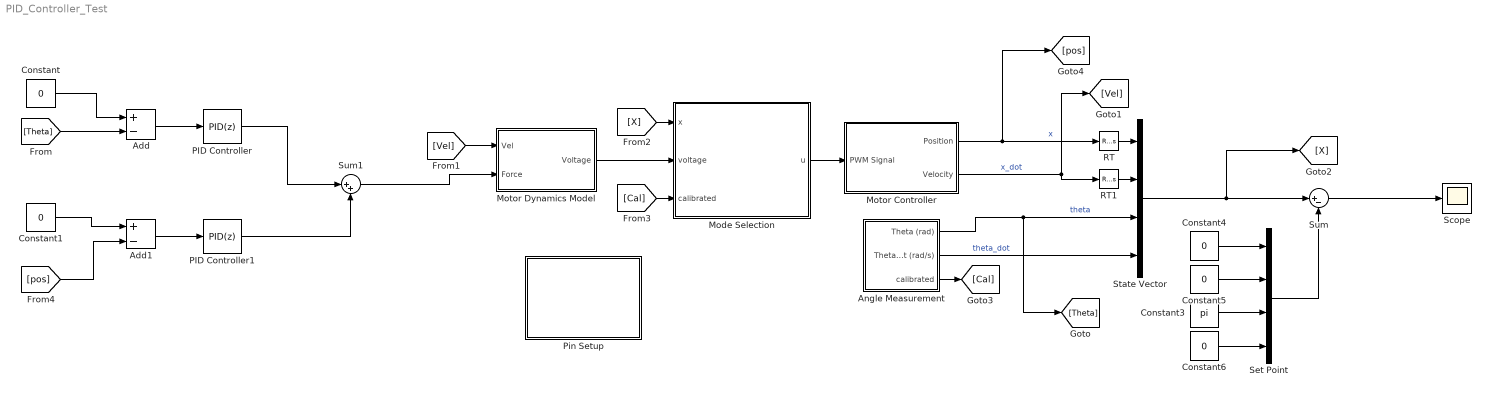
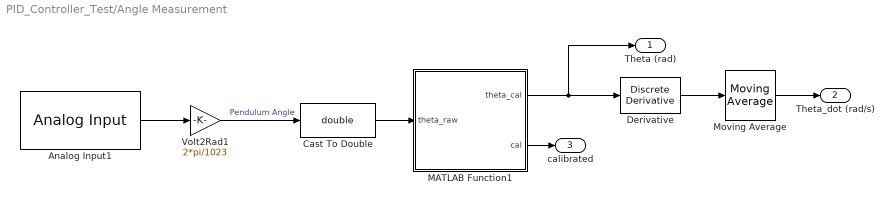
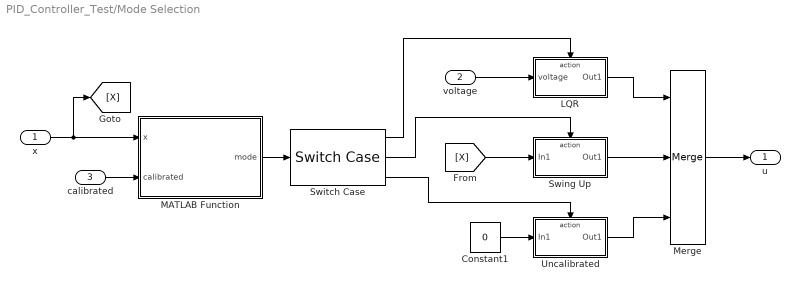
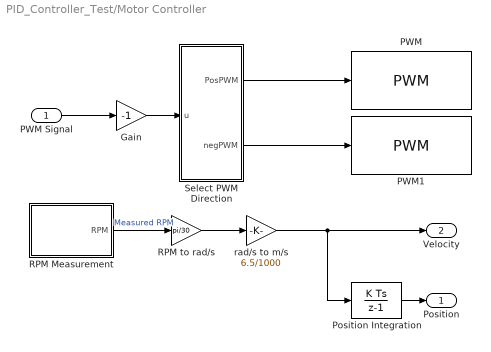
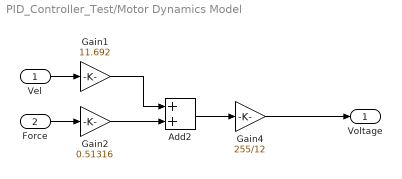
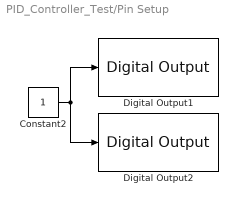
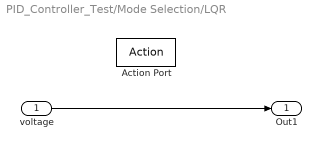
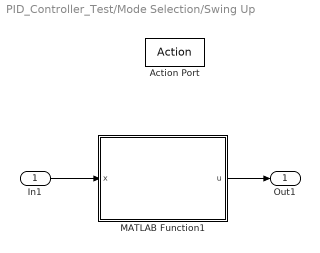
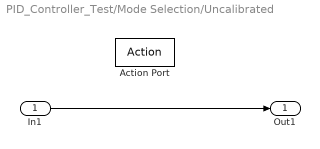
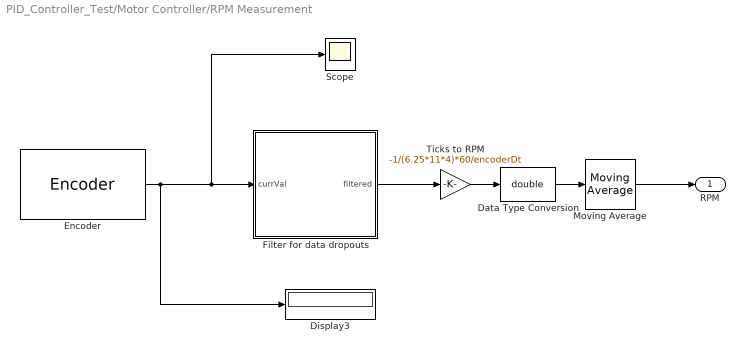
== matlab function PID_Controller_Test/Motor Controller/Select PWM Direction ==
function [PosPWM, negPWM] = PWMDir(u)
    if u > 0
        PosPWM = u;
        negPWM = 0;
    else
        negPWM = -u;
        PosPWM = 0;
    end
end

== matlab function PID_Controller_Test/Motor Controller/RPM Measurement/Filter for data dropouts ==
function filtered = filterEncoder(currVal)
%#codegen

persistent prevVal

% Initialize on first call
if isempty(prevVal)
    prevVal = currVal;
end

% Dropout detection
threshold = 200;  % Adjust based on your system

if abs(currVal - prevVal) > threshold
    % Bad reading: keep previous good value
    filtered = prevVal;
elseif abs(currVal) > 500
    % this is also a bad reading, nothing should be greater than this
    filtered = prevVal;
else
    % Good reading: update and pass through
    filtered = currVal;
    prevVal = currVal;
end

== matlab function PID_Controller_Test/Mode Selection/MATLAB Function ==
function mode = ControllerMode(x, calibrated)
% the controller mode selection acts on the state of the pendulum. In the
% standard stable configuration, the controller will center and perform a
% swing up. Once this is achieved, the controller moves into the LQR
% regulator for upright control.
%
% Inputs:
% x - full state vector [4x1]
% voltage - voltage control input [V]
% calibrated - calibration flag boolean

% demux the input state:

pos = x(1);
vel = x(2);
theta = x(3);
omega = x(4);

% if it's calibrated, continue
if calibrated
    % If it is close enough to the vertical position, run the LQR
    if abs(theta-pi) < 0.15 && abs(omega) < 1.5
        mode = 1;        
    else % if it is close enough to the downward position, run the swing up controller
        mode = 2;
    end
else
    mode = 3;
end

end

== matlab function PID_Controller_Test/Angle Measurement/MATLAB Function1 ==
function [theta_cal, cal] = calibrateAngle(theta_raw)
% Calibrates angle by averaging first N samples at startup,
% then subtracting the average offset and adding pi.
%
% Inputs:
%  - theta_raw : current raw angle measurement
%  - reset     : boolean flag to reset calibration (true at startup)
%
% Output:
%  - theta_cal : calibrated angle (aligned so initial avg = pi)

    persistent sample_count theta_sum theta0 calibrated N

    if isempty(calibrated)
        % Initialization on reset
        N = 250;                % number of samples to average
        sample_count = 0;
        theta_sum = 0;
        theta0 = 0;
        calibrated = false;
        cal = false;
    end

    if ~calibrated
        % Accumulate samples for averaging
        sample_count = sample_count + 1;
        theta_sum = theta_sum + theta_raw;
        
        if sample_count >= N
            theta0 = theta_sum / N;  % average offset
            calibrated = true;
            cal = true;
        end
    end

    if calibrated
        % After calibration, subtract offset and add pi
        theta_cal = theta_raw - theta0 + 2*pi;
        cal = true;
    else
        % During calibration phase, output raw angle
        theta_cal = theta_raw + 1/2*pi; 
        cal = false;
    end
end

== matlab function PID_Controller_Test/Mode Selection/Swing Up/MATLAB Function1 ==
function u = SwingUpController(x)

% demux the input state:
pos = x(1);
vel = x(2);
theta = x(3);
omega = x(4);

persistent thetaMax

if isempty(thetaMax)
    thetaMax = theta;
end

T = 1.1; % period of pendulum
t = 0.05; % acceleration time of pendulum

alphaBest = thetaMax * sin(2*pi/T*t);

u = 0;

end

/*
 * PID_Controller_Test.c
 *
 * Academic License - for use in teaching, academic research, and meeting
 * course requirements at degree granting institutions only.  Not for
 * government, commercial, or other organizational use.
 *
 * Code generation for model "PID_Controller_Test".
 *
 * Model version              : 1.1
 * Simulink Coder version : 25.1 (R2025a) 21-Nov-2024
 * C source code generated on : Mon Oct  6 19:57:00 2025
 *
 * Target selection: ert.tlc
 * Note: GRT includes extra infrastructure and instrumentation for prototyping
 * Embedded hardware selection: Atmel->AVR
 * Code generation objectives: Unspecified
 * Validation result: Not run
 */

#include "PID_Controller_Test.h"
#include "PID_Controller_Test_types.h"
#include "rtwtypes.h"
#include <string.h>
#include <math.h>
#include "PID_Controller_Test_private.h"
#include "multiword_types.h"
#include "rt_nonfinite.h"

/* Block signals (default storage) */
B_PID_Controller_Test_T PID_Controller_Test_B;

/* Block states (default storage) */
DW_PID_Controller_Test_T PID_Controller_Test_DW;

/* Real-time model */
static RT_MODEL_PID_Controller_Test_T PID_Controller_Test_M_;
RT_MODEL_PID_Controller_Test_T *const PID_Controller_Test_M =
  &PID_Controller_Test_M_;

/* Forward declaration for local functions */
static void PID_Controller_SystemCore_setup(dsp_simulink_MovingAverage_PI_T *obj);
static void PID_Controll_SystemCore_setup_l(dsp_simulink_MovingAverage_l_T *obj);
static void rate_monotonic_scheduler(void);
void sMultiWordMul(const uint32_T u1[], int16_T n1, const uint32_T u2[], int16_T
                   n2, uint32_T y[], int16_T n)
{
  uint32_T a0;
  uint32_T a1;
  uint32_T b1;
  uint32_T cb;
  uint32_T cb1;
  uint32_T cb2;
  uint32_T u1i;
  uint32_T w01;
  uint32_T w10;
  uint32_T yk;
  int16_T i;
  int16_T j;
  int16_T k;
  int16_T ni;
  boolean_T isNegative1;
  boolean_T isNegative2;
  isNegative1 = ((u1[n1 - 1] & 2147483648UL) != 0UL);
  isNegative2 = ((u2[n2 - 1] & 2147483648UL) != 0UL);
  cb1 = 1UL;

  /* Initialize output to zero */
  for (k = 0; k < n; k++) {
    y[k] = 0UL;
  }

  for (i = 0; i < n1; i++) {
    cb = 0UL;
    u1i = u1[i];
    if (isNegative1) {
      u1i = ~u1i + cb1;
      cb1 = (uint32_T)(u1i < cb1);
    }

    a1 = u1i >> 16U;
    a0 = u1i & 65535UL;
    cb2 = 1UL;
    ni = n - i;
    ni = n2 <= ni ? n2 : ni;
    k = i;
    for (j = 0; j < ni; j++) {
      u1i = u2[j];
      if (isNegative2) {
        u1i = ~u1i + cb2;
        cb2 = (uint32_T)(u1i < cb2);
      }

      b1 = u1i >> 16U;
      u1i &= 65535UL;
      w10 = a1 * u1i;
      w01 = a0 * b1;
      yk = y[k] + cb;
      cb = (uint32_T)(yk < cb);
      u1i *= a0;
      yk += u1i;
      cb += (uint32_T)(yk < u1i);
      u1i = w10 << 16U;
      yk += u1i;
      cb += (uint32_T)(yk < u1i);
      u1i = w01 << 16U;
      yk += u1i;
      cb += (uint32_T)(yk < u1i);
      y[k] = yk;
      cb += w10 >> 16U;
      cb += w01 >> 16U;
      cb += a1 * b1;
      k++;
    }

    if (k < n) {
      y[k] = cb;
    }
  }

  /* Apply sign */
  if (isNegative1 != isNegative2) {
    cb = 1UL;
    for (k = 0; k < n; k++) {
      yk = ~y[k] + cb;
      y[k] = yk;
      cb = (uint32_T)(yk < cb);
    }
  }
}

real_T sMultiWord2Double(const uint32_T u1[], int16_T n1, int16_T e1)
{
  real_T y;
  uint32_T cb;
  uint32_T u1i;
  int16_T exp_0;
  int16_T i;
  y = 0.0;
  exp_0 = e1;
  if ((u1[n1 - 1] & 2147483648UL) != 0UL) {
    cb = 1UL;
    for (i = 0; i < n1; i++) {
      u1i = ~u1[i];
      cb += u1i;
      y -= ldexp(cb, exp_0);
      cb = (uint32_T)(cb < u1i);
      exp_0 += 32;
    }
  } else {
    for (i = 0; i < n1; i++) {
      y += ldexp(u1[i], exp_0);
      exp_0 += 32;
    }
  }

  return y;
}

/*
 * Set which subrates need to run this base step (base rate always runs).
 * This function must be called prior to calling the model step function
 * in order to remember which rates need to run this base step.  The
 * buffering of events allows for overlapping preemption.
 */
void PID_Controller_Test_SetEventsForThisBaseStep(boolean_T *eventFlags)
{
  /* Task runs when its counter is zero, computed via rtmStepTask macro */
  eventFlags[1] = ((boolean_T)rtmStepTask(PID_Controller_Test_M, 1));
  eventFlags[2] = ((boolean_T)rtmStepTask(PID_Controller_Test_M, 2));
}

/*
 *         This function updates active task flag for each subrate
 *         and rate transition flags for tasks that exchange data.
 *         The function assumes rate-monotonic multitasking scheduler.
 *         The function must be called at model base rate so that
 *         the generated code self-manages all its subrates and rate
 *         transition flags.
 */
static void rate_monotonic_scheduler(void)
{
  /* To ensure a deterministic data transfer between two rates,
   * data is transferred at the priority of a fast task and the frequency
   * of the slow task.  The following flags indicate when the data transfer
   * happens.  That is, a rate interaction flag is set true when both rates
   * will run, and false otherwise.
   */

  /* tid 1 shares data with slower tid rate: 2 */
  if (PID_Controller_Test_M->Timing.TaskCounters.TID[1] == 0) {
    PID_Controller_Test_M->Timing.RateInteraction.TID1_2 =
      (PID_Controller_Test_M->Timing.TaskCounters.TID[2] == 0);
  }

  /* Compute which subrates run during the next base time step.  Subrates
   * are an integer multiple of the base rate counter.  Therefore, the subtask
   * counter is reset when it reaches its limit (zero means run).
   */
  (PID_Controller_Test_M->Timing.TaskCounters.TID[1])++;
  if ((PID_Controller_Test_M->Timing.TaskCounters.TID[1]) > 1) {/* Sample time: [0.007s, 0.0s] */
    PID_Controller_Test_M->Timing.TaskCounters.TID[1] = 0;
  }

  (PID_Controller_Test_M->Timing.TaskCounters.TID[2])++;
  if ((PID_Controller_Test_M->Timing.TaskCounters.TID[2]) > 3) {/* Sample time: [0.014s, 0.0s] */
    PID_Controller_Test_M->Timing.TaskCounters.TID[2] = 0;
  }
}

static void PID_Controller_SystemCore_setup(dsp_simulink_MovingAverage_PI_T *obj)
{
  obj->isInitialized = 1L;

  /* Start for MATLABSystem: '<S1>/Moving Average' */
  obj->NumChannels = 1L;
  obj->FrameLength = 1L;
  obj->pCumSum = 0.0;
  memset(&obj->pCumSumRev[0], 0, 11U * sizeof(real_T));
  obj->pCumRevIndex = 1.0;
  obj->pModValueRev = 0.0;
  obj->isSetupComplete = true;
  obj->TunablePropsChanged = false;
}

static void PID_Controll_SystemCore_setup_l(dsp_simulink_MovingAverage_l_T *obj)
{
  obj->isInitialized = 1L;

  /* Start for MATLABSystem: '<S15>/Moving Average' */
  obj->NumChannels = 1L;
  obj->FrameLength = 1L;
  obj->pCumSum = 0.0;
  obj->pCumSumRev[0] = 0.0;
  obj->pCumSumRev[1] = 0.0;
  obj->pCumSumRev[2] = 0.0;
  obj->pCumRevIndex = 1.0;
  obj->pModValueRev = 0.0;
  obj->isSetupComplete = true;
  obj->TunablePropsChanged = false;
}

real_T rt_roundd_snf(real_T u)
{
  real_T y;
  if (fabs(u) < 4.503599627370496E+15) {
    if (u >= 0.5) {
      y = floor(u + 0.5);
    } else if (u > -0.5) {
      y = u * 0.0;
    } else {
      y = ceil(u - 0.5);
    }
  } else {
    y = u;
  }

  return y;
}

/* Model step function for TID0 */
void PID_Controller_Test_step0(void)   /* Sample time: [0.0035s, 0.0s] */
{
  {                                    /* Sample time: [0.0035s, 0.0s] */
    rate_monotonic_scheduler();
  }
}

/* Model step function for TID1 */
void PID_Controller_Test_step1(void)   /* Sample time: [0.007s, 0.0s] */
{
  real_T Diff;
  real_T csum;
  real_T rtb_TSamp;
  real_T rtb_theta_cal;
  real_T z;
  uint32_T rtb_PendulumAngle;
  int16_T rtb_mode;
  uint16_T b_varargout_1;
  uint8_T tmp_0;
  boolean_T guard1;
  boolean_T rtb_cal;
  boolean_T tmp;

  /* RateTransition: '<Root>/RT' incorporates:
   *  Concatenate: '<Root>/State Vector'
   *  RateTransition generated from: '<Root>/Sum1'
   *  RateTransition generated from: '<S4>/Add2'
   */
  tmp = PID_Controller_Test_M->Timing.RateInteraction.TID1_2;
  if (tmp) {
    PID_Controller_Test_B.StateVector[0] = PID_Controller_Test_DW.RT_Buffer0;

    /* RateTransition: '<Root>/RT1' incorporates:
     *  Concatenate: '<Root>/State Vector'
     */
    PID_Controller_Test_B.StateVector[1] = PID_Controller_Test_DW.RT1_Buffer0;
  }

  /* End of RateTransition: '<Root>/RT' */

  /* MATLABSystem: '<S1>/Analog Input1' */
  PID_Controller_Test_DW.obj_g.AnalogInDriverObj.MW_ANALOGIN_HANDLE =
    MW_AnalogIn_GetHandle(14UL);
  MW_AnalogInSingle_ReadResult
    (PID_Controller_Test_DW.obj_g.AnalogInDriverObj.MW_ANALOGIN_HANDLE,
     &b_varargout_1, MW_ANALOGIN_UINT16);

  /* Gain: '<S1>/Volt2Rad1' incorporates:
   *  MATLABSystem: '<S1>/Analog Input1'
   * */
  rtb_PendulumAngle = (uint32_T)PID_Controller_Test_P.Volt2Rad1_Gain *
    b_varargout_1;

  /* MATLAB Function: '<S1>/MATLAB Function1' incorporates:
   *  DataTypeConversion: '<S1>/Cast To Double'
   *  Gain: '<S1>/Volt2Rad1'
   */
  guard1 = false;
  if (!PID_Controller_Test_DW.calibrated) {
    PID_Controller_Test_DW.sample_count++;

    /* DataTypeConversion: '<S1>/Cast To Double' incorporates:
     *  Gain: '<S1>/Volt2Rad1'
     */
    rtb_TSamp = (real_T)rtb_PendulumAngle * 1.1920928955078125E-7;
    PID_Controller_Test_DW.theta_sum += rtb_TSamp;
    if (PID_Controller_Test_DW.sample_count >= PID_Controller_Test_DW.N) {
      PID_Controller_Test_DW.theta0 = PID_Controller_Test_DW.theta_sum /
        PID_Controller_Test_DW.N;
      PID_Controller_Test_DW.calibrated = true;
      guard1 = true;
    } else {
      rtb_theta_cal = rtb_TSamp + 1.5707963267948966;
      rtb_cal = false;
    }
  } else {
    guard1 = true;
  }

  if (guard1) {
    rtb_theta_cal = ((real_T)rtb_PendulumAngle * 1.1920928955078125E-7 -
                     PID_Controller_Test_DW.theta0) + 6.2831853071795862;
    rtb_cal = true;
  }

  /* End of MATLAB Function: '<S1>/MATLAB Function1' */

  /* SignalConversion generated from: '<Root>/State Vector' incorporates:
   *  Concatenate: '<Root>/State Vector'
   */
  PID_Controller_Test_B.StateVector[2] = rtb_theta_cal;

  /* SampleTimeMath: '<S8>/TSamp'
   *
   * About '<S8>/TSamp':
   *  y = u * K where K = 1 / ( w * Ts )
   *   */
  rtb_TSamp = rtb_theta_cal * PID_Controller_Test_P.TSamp_WtEt;

  /* Sum: '<S8>/Diff' incorporates:
   *  UnitDelay: '<S8>/UD'
   */
  Diff = rtb_TSamp - PID_Controller_Test_DW.UD_DSTATE;

  /* MATLABSystem: '<S1>/Moving Average' */
  if (PID_Controller_Test_DW.obj.TunablePropsChanged) {
    PID_Controller_Test_DW.obj.TunablePropsChanged = false;
  }

  z = 0.0;

  /* Concatenate: '<Root>/State Vector' incorporates:
   *  MATLABSystem: '<S1>/Moving Average'
   *  SignalConversion generated from: '<S1>/Moving Average'
   */
  PID_Controller_Test_B.StateVector[3] = 0.0;

  /* MATLABSystem: '<S1>/Moving Average' */
  csum = PID_Controller_Test_DW.obj.pCumSum + Diff;
  if (PID_Controller_Test_DW.obj.pModValueRev == 0.0) {
    z = PID_Controller_Test_DW.obj.pCumSumRev[(int16_T)
      PID_Controller_Test_DW.obj.pCumRevIndex - 1] + csum;
  }

  PID_Controller_Test_DW.obj.pCumSumRev[(int16_T)
    PID_Controller_Test_DW.obj.pCumRevIndex - 1] = Diff;
  if (PID_Controller_Test_DW.obj.pCumRevIndex != 11.0) {
    Diff = PID_Controller_Test_DW.obj.pCumRevIndex + 1.0;
  } else {
    Diff = 1.0;
    csum = 0.0;
    for (rtb_mode = 9; rtb_mode >= 0; rtb_mode--) {
      PID_Controller_Test_DW.obj.pCumSumRev[rtb_mode] +=
        PID_Controller_Test_DW.obj.pCumSumRev[rtb_mode + 1];
    }
  }

  if (PID_Controller_Test_DW.obj.pModValueRev == 0.0) {
    /* Concatenate: '<Root>/State Vector' incorporates:
     *  SignalConversion generated from: '<S1>/Moving Average'
     */
    PID_Controller_Test_B.StateVector[3] = z / 12.0;
  }

  PID_Controller_Test_DW.obj.pCumSum = csum;
  PID_Controller_Test_DW.obj.pCumRevIndex = Diff;
  if (PID_Controller_Test_DW.obj.pModValueRev > 0.0) {
    PID_Controller_Test_DW.obj.pModValueRev--;
  } else {
    PID_Controller_Test_DW.obj.pModValueRev = 0.0;
  }

  /* Constant: '<Root>/Constant4' */
  PID_Controller_Test_B.SetPoint[0] = PID_Controller_Test_P.Constant4_Value;

  /* Constant: '<Root>/Constant5' */
  PID_Controller_Test_B.SetPoint[1] = PID_Controller_Test_P.Constant5_Value;

  /* Constant: '<Root>/Constant3' */
  PID_Controller_Test_B.SetPoint[2] = PID_Controller_Test_P.Constant3_Value;

  /* Constant: '<Root>/Constant6' */
  PID_Controller_Test_B.SetPoint[3] = PID_Controller_Test_P.Constant6_Value;

  /* Sum: '<Root>/Sum' */
  PID_Controller_Test_B.SetPoint[0] = PID_Controller_Test_B.StateVector[0] -
    PID_Controller_Test_B.SetPoint[0];
  PID_Controller_Test_B.SetPoint[1] = PID_Controller_Test_B.StateVector[1] -
    PID_Controller_Test_B.SetPoint[1];
  PID_Controller_Test_B.SetPoint[2] = PID_Controller_Test_B.StateVector[2] -
    PID_Controller_Test_B.SetPoint[2];
  PID_Controller_Test_B.SetPoint[3] = PID_Controller_Test_B.StateVector[3] -
    PID_Controller_Test_B.SetPoint[3];

  /* Sum: '<Root>/Add' incorporates:
   *  Constant: '<Root>/Constant'
   */
  rtb_theta_cal = PID_Controller_Test_P.Constant_Value - rtb_theta_cal;

  /* MATLAB Function: '<S2>/MATLAB Function' */
  if (rtb_cal) {
    if ((fabs(PID_Controller_Test_B.StateVector[2] - 3.1415926535897931) < 0.15)
        && (fabs(PID_Controller_Test_B.StateVector[3]) < 1.5)) {
      rtb_mode = 1;
    } else {
      rtb_mode = 2;
    }
  } else {
    rtb_mode = 3;
  }

  /* End of MATLAB Function: '<S2>/MATLAB Function' */

  /* RateTransition generated from: '<S4>/Add2' incorporates:
   *  RateTransition generated from: '<Root>/Sum1'
   */
  if (tmp) {
    /* RateTransition generated from: '<S4>/Add2' */
    PID_Controller_Test_B.TmpRTBAtAdd2Inport1 =
      PID_Controller_Test_DW.TmpRTBAtAdd2Inport1_Buffer0;

    /* RateTransition generated from: '<Root>/Sum1' */
    PID_Controller_Test_B.TmpRTBAtSum1Inport2 =
      PID_Controller_Test_DW.TmpRTBAtSum1Inport2_Buffer0;
  }

  /* Gain: '<S55>/Filter Coefficient' incorporates:
   *  DiscreteIntegrator: '<S47>/Filter'
   *  Gain: '<S45>/Derivative Gain'
   *  Sum: '<S47>/SumD'
   */
  z = (PID_Controller_Test_P.PIDController_D * rtb_theta_cal -
       PID_Controller_Test_DW.Filter_DSTATE) *
    PID_Controller_Test_P.PIDController_N;

  /* SwitchCase: '<S2>/Switch Case' */
  switch ((int32_T)rtb_mode) {
   case 1L:
    /* Outputs for IfAction SubSystem: '<S2>/LQR' incorporates:
     *  ActionPort: '<S10>/Action Port'
     */
    /* SignalConversion generated from: '<S10>/voltage' incorporates:
     *  DiscreteIntegrator: '<S52>/Integrator'
     *  Gain: '<S4>/Gain2'
     *  Gain: '<S4>/Gain4'
     *  Gain: '<S57>/Proportional Gain'
     *  Sum: '<Root>/Sum1'
     *  Sum: '<S4>/Add2'
     *  Sum: '<S61>/Sum'
     */
    csum = ((((PID_Controller_Test_P.PIDController_P * rtb_theta_cal +
               PID_Controller_Test_DW.Integrator_DSTATE) + z) +
             PID_Controller_Test_B.TmpRTBAtSum1Inport2) *
            PID_Controller_Test_P.Gain2_Gain +
            PID_Controller_Test_B.TmpRTBAtAdd2Inport1) *
      PID_Controller_Test_P.Gain4_Gain;

    /* End of Outputs for SubSystem: '<S2>/LQR' */
    break;

   case 2L:
    /* Outputs for IfAction SubSystem: '<S2>/Swing Up' incorporates:
     *  ActionPort: '<S12>/Action Port'
     */
    /* MATLAB Function: '<S12>/MATLAB Function1' */
    PID_Controller_Test_DW.thetaMax_not_empty = true;

    /* SignalConversion generated from: '<S12>/Out1' incorporates:
     *  MATLAB Function: '<S12>/MATLAB Function1'
     */
    csum = 0.0;

    /* End of Outputs for SubSystem: '<S2>/Swing Up' */
    break;

   default:
    /* Outputs for IfAction SubSystem: '<S2>/Uncalibrated' incorporates:
     *  ActionPort: '<S13>/Action Port'
     */
    /* SignalConversion generated from: '<S13>/In1' incorporates:
     *  Constant: '<S2>/Constant1'
     */
    csum = PID_Controller_Test_P.Constant1_Value;

    /* End of Outputs for SubSystem: '<S2>/Uncalibrated' */
    break;
  }

  /* End of SwitchCase: '<S2>/Switch Case' */

  /* Gain: '<S3>/Gain' */
  csum *= PID_Controller_Test_P.Gain_Gain;

  /* MATLAB Function: '<S3>/Select PWM Direction' */
  if (csum > 0.0) {
    Diff = 0.0;
  } else {
    Diff = -csum;
    csum = 0.0;
  }

  /* End of MATLAB Function: '<S3>/Select PWM Direction' */

  /* MATLABSystem: '<S3>/PWM' */
  PID_Controller_Test_DW.obj_gm.PWMDriverObj.MW_PWM_HANDLE = MW_PWM_GetHandle
    (5UL);

  /* Start for MATLABSystem: '<S3>/PWM' */
  if (!(csum <= 255.0)) {
    csum = 255.0;
  }

  /* MATLABSystem: '<S3>/PWM' */
  MW_PWM_SetDutyCycle(PID_Controller_Test_DW.obj_gm.PWMDriverObj.MW_PWM_HANDLE,
                      csum);

  /* MATLABSystem: '<S3>/PWM1' */
  PID_Controller_Test_DW.obj_k.PWMDriverObj.MW_PWM_HANDLE = MW_PWM_GetHandle(6UL);

  /* Start for MATLABSystem: '<S3>/PWM1' */
  if (!(Diff <= 255.0)) {
    Diff = 255.0;
  }

  /* MATLABSystem: '<S3>/PWM1' */
  MW_PWM_SetDutyCycle(PID_Controller_Test_DW.obj_k.PWMDriverObj.MW_PWM_HANDLE,
                      Diff);

  /* MATLABSystem: '<S7>/Digital Output1' incorporates:
   *  Constant: '<S7>/Constant2'
   */
  csum = rt_roundd_snf(PID_Controller_Test_P.Constant2_Value);
  if (csum < 256.0) {
    if (csum >= 0.0) {
      tmp_0 = (uint8_T)csum;
    } else {
      tmp_0 = 0U;
    }
  } else {
    tmp_0 = MAX_uint8_T;
  }

  writeDigitalPin(7, tmp_0);

  /* End of MATLABSystem: '<S7>/Digital Output1' */

  /* MATLABSystem: '<S7>/Digital Output2' */
  if (csum < 256.0) {
    if (csum >= 0.0) {
      tmp_0 = (uint8_T)csum;
    } else {
      tmp_0 = 0U;
    }
  } else {
    tmp_0 = MAX_uint8_T;
  }

  writeDigitalPin(8, tmp_0);

  /* End of MATLABSystem: '<S7>/Digital Output2' */

  /* Update for UnitDelay: '<S8>/UD' */
  PID_Controller_Test_DW.UD_DSTATE = rtb_TSamp;

  /* Update for DiscreteIntegrator: '<S52>/Integrator' incorporates:
   *  Gain: '<S49>/Integral Gain'
   */
  PID_Controller_Test_DW.Integrator_DSTATE +=
    PID_Controller_Test_P.PIDController_I * rtb_theta_cal *
    PID_Controller_Test_P.Integrator_gainval;

  /* Update for DiscreteIntegrator: '<S47>/Filter' */
  PID_Controller_Test_DW.Filter_DSTATE += PID_Controller_Test_P.Filter_gainval *
    z;
}

/* Model step function for TID2 */
void PID_Controller_Test_step2(void)   /* Sample time: [0.014s, 0.0s] */
{
  int64m_T rtb_TickstoRPM;
  real_T csum;
  real_T cumRevIndex;
  real_T rtb_Add1;
  real_T rtb_Gain1;
  real_T z;
  int32_T qY;
  int32_T rtb_Encoder;
  uint32_T tmp;
  uint32_T tmp_0;

  /* Sum: '<Root>/Add1' incorporates:
   *  Constant: '<Root>/Constant1'
   */
  rtb_Add1 = PID_Controller_Test_P.Constant1_Value_c -
    PID_Controller_Test_DW.PositionIntegration_DSTATE;

  /* MATLABSystem: '<S15>/Encoder' */
  if (PID_Controller_Test_DW.obj_d.TunablePropsChanged) {
    PID_Controller_Test_DW.obj_d.TunablePropsChanged = false;
  }

  MW_EncoderRead(PID_Controller_Test_DW.obj_d.Index, &rtb_Encoder);
  MW_EncoderReset(PID_Controller_Test_DW.obj_d.Index);

  /* End of MATLABSystem: '<S15>/Encoder' */
  /* MATLAB Function: '<S15>/Filter for data dropouts' */
  if (!PID_Controller_Test_DW.prevVal_not_empty) {
    PID_Controller_Test_DW.prevVal = rtb_Encoder;
    PID_Controller_Test_DW.prevVal_not_empty = true;
  }

  if ((rtb_Encoder >= 0L) && (PID_Controller_Test_DW.prevVal < rtb_Encoder -
       MAX_int32_T)) {
    qY = MAX_int32_T;
  } else if ((rtb_Encoder < 0L) && (PID_Controller_Test_DW.prevVal > rtb_Encoder
              - MIN_int32_T)) {
    qY = MIN_int32_T;
  } else {
    qY = rtb_Encoder - PID_Controller_Test_DW.prevVal;
  }

  if (qY < 0L) {
    if (qY <= MIN_int32_T) {
      qY = MAX_int32_T;
    } else {
      qY = -qY;
    }
  }

  if (qY > 200L) {
    rtb_Encoder = PID_Controller_Test_DW.prevVal;
  } else {
    if (rtb_Encoder < 0L) {
      if (rtb_Encoder <= MIN_int32_T) {
        qY = MAX_int32_T;
      } else {
        qY = -rtb_Encoder;
      }
    } else {
      qY = rtb_Encoder;
    }

    if (qY > 500L) {
      rtb_Encoder = PID_Controller_Test_DW.prevVal;
    } else {
      PID_Controller_Test_DW.prevVal = rtb_Encoder;
    }
  }

  /* End of MATLAB Function: '<S15>/Filter for data dropouts' */

  /* Gain: '<S15>/Ticks to RPM' */
  tmp = (uint32_T)PID_Controller_Test_P.TickstoRPM_Gain;
  tmp_0 = (uint32_T)rtb_Encoder;
  sMultiWordMul(&tmp, 1, &tmp_0, 1, &rtb_TickstoRPM.chunks[0U], 2);

  /* MATLABSystem: '<S15>/Moving Average' incorporates:
   *  DataTypeConversion: '<S15>/Data Type Conversion'
   */
  if (PID_Controller_Test_DW.obj_n.TunablePropsChanged) {
    PID_Controller_Test_DW.obj_n.TunablePropsChanged = false;
  }

  z = 0.0;
  rtb_Gain1 = 0.0;
  csum = sMultiWord2Double(&rtb_TickstoRPM.chunks[0U], 2, 0) *
    7.4505805969238281E-9 + PID_Controller_Test_DW.obj_n.pCumSum;
  if (PID_Controller_Test_DW.obj_n.pModValueRev == 0.0) {
    z = PID_Controller_Test_DW.obj_n.pCumSumRev[(int16_T)
      PID_Controller_Test_DW.obj_n.pCumRevIndex - 1] + csum;
  }

  PID_Controller_Test_DW.obj_n.pCumSumRev[(int16_T)
    PID_Controller_Test_DW.obj_n.pCumRevIndex - 1] = sMultiWord2Double
    (&rtb_TickstoRPM.chunks[0U], 2, 0) * 7.4505805969238281E-9;
  if (PID_Controller_Test_DW.obj_n.pCumRevIndex != 3.0) {
    cumRevIndex = PID_Controller_Test_DW.obj_n.pCumRevIndex + 1.0;
  } else {
    cumRevIndex = 1.0;
    csum = 0.0;
    PID_Controller_Test_DW.obj_n.pCumSumRev[1] +=
      PID_Controller_Test_DW.obj_n.pCumSumRev[2];
    PID_Controller_Test_DW.obj_n.pCumSumRev[0] +=
      PID_Controller_Test_DW.obj_n.pCumSumRev[1];
  }

  if (PID_Controller_Test_DW.obj_n.pModValueRev == 0.0) {
    rtb_Gain1 = z / 4.0;
  }

  PID_Controller_Test_DW.obj_n.pCumSum = csum;
  PID_Controller_Test_DW.obj_n.pCumRevIndex = cumRevIndex;
  if (PID_Controller_Test_DW.obj_n.pModValueRev > 0.0) {
    PID_Controller_Test_DW.obj_n.pModValueRev--;
  } else {
    PID_Controller_Test_DW.obj_n.pModValueRev = 0.0;
  }

  /* Gain: '<S3>/rad//s to m//s' incorporates:
   *  Gain: '<S3>/RPM to rad//s'
   *  MATLABSystem: '<S15>/Moving Average'
   */
  z = PID_Controller_Test_P.RPMtorads_Gain * rtb_Gain1 *
    PID_Controller_Test_P.radstoms_Gain;

  /* Gain: '<S4>/Gain1' */
  rtb_Gain1 = PID_Controller_Test_P.Gain1_Gain * z;

  /* RateTransition generated from: '<S4>/Add2' */
  PID_Controller_Test_DW.TmpRTBAtAdd2Inport1_Buffer0 = rtb_Gain1;

  /* Gain: '<S107>/Filter Coefficient' incorporates:
   *  DiscreteIntegrator: '<S99>/Filter'
   *  Gain: '<S97>/Derivative Gain'
   *  Sum: '<S99>/SumD'
   */
  rtb_Gain1 = (PID_Controller_Test_P.PIDController1_D * rtb_Add1 -
               PID_Controller_Test_DW.Filter_DSTATE_j) *
    PID_Controller_Test_P.PIDController1_N;

  /* RateTransition: '<Root>/RT' */
  PID_Controller_Test_DW.RT_Buffer0 =
    PID_Controller_Test_DW.PositionIntegration_DSTATE;

  /* RateTransition: '<Root>/RT1' */
  PID_Controller_Test_DW.RT1_Buffer0 = z;

  /* RateTransition generated from: '<Root>/Sum1' incorporates:
   *  DiscreteIntegrator: '<S104>/Integrator'
   *  Gain: '<S109>/Proportional Gain'
   *  Sum: '<S113>/Sum'
   */
  PID_Controller_Test_DW.TmpRTBAtSum1Inport2_Buffer0 =
    (PID_Controller_Test_P.PIDController1_P * rtb_Add1 +
     PID_Controller_Test_DW.Integrator_DSTATE_l) + rtb_Gain1;

  /* Update for DiscreteIntegrator: '<S3>/Position Integration' */
  PID_Controller_Test_DW.PositionIntegration_DSTATE +=
    PID_Controller_Test_P.PositionIntegration_gainval * z;

  /* Update for DiscreteIntegrator: '<S3>/Position Integration' */
  if (PID_Controller_Test_DW.PositionIntegration_DSTATE >
      PID_Controller_Test_P.PositionIntegration_UpperSat) {
    /* Update for DiscreteIntegrator: '<S3>/Position Integration' */
    PID_Controller_Test_DW.PositionIntegration_DSTATE =
      PID_Controller_Test_P.PositionIntegration_UpperSat;
  } else if (PID_Controller_Test_DW.PositionIntegration_DSTATE <
             PID_Controller_Test_P.PositionIntegration_LowerSat) {
    /* Update for DiscreteIntegrator: '<S3>/Position Integration' */
    PID_Controller_Test_DW.PositionIntegration_DSTATE =
      PID_Controller_Test_P.PositionIntegration_LowerSat;
  }

  /* Update for DiscreteIntegrator: '<S99>/Filter' */
  PID_Controller_Test_DW.Filter_DSTATE_j +=
    PID_Controller_Test_P.Filter_gainval_i * rtb_Gain1;

  /* Update for DiscreteIntegrator: '<S104>/Integrator' incorporates:
   *  Gain: '<S101>/Integral Gain'
   */
  PID_Controller_Test_DW.Integrator_DSTATE_l +=
    PID_Controller_Test_P.PIDController1_I * rtb_Add1 *
    PID_Controller_Test_P.Integrator_gainval_b;
}
